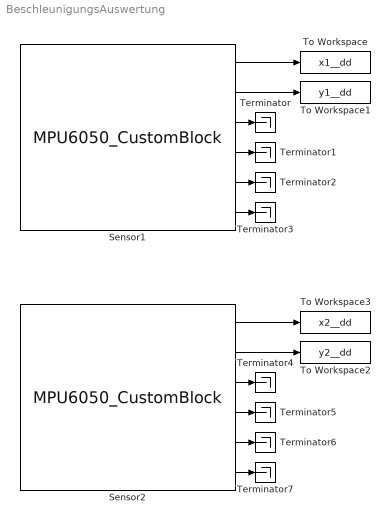
/*
 * Academic License - for use in teaching, academic research, and meeting
 * course requirements at degree granting institutions only.  Not for
 * government, commercial, or other organizational use.
 *
 * File: BeschleunigungsAuswertung.c
 *
 * Code generated for Simulink model 'BeschleunigungsAuswertung'.
 *
 * Model version                  : 1.79
 * Simulink Coder version         : 8.10 (R2016a) 10-Feb-2016
 * C/C++ source code generated on : Mon Aug 08 17:04:04 2016
 *
 * Target selection: ert.tlc
 * Embedded hardware selection: ARM Compatible->ARM Cortex
 * Code generation objectives: Unspecified
 * Validation result: Not run
 */

#include "BeschleunigungsAuswertung.h"
#include "BeschleunigungsAuswertung_private.h"
#include "BeschleunigungsAuswertung_dt.h"

/* Block signals (auto storage) */
B_BeschleunigungsAuswertung_T BeschleunigungsAuswertung_B;

/* Block states (auto storage) */
DW_BeschleunigungsAuswertung_T BeschleunigungsAuswertung_DW;

/* Real-time model */
RT_MODEL_BeschleunigungsAuswe_T BeschleunigungsAuswertung_M_;
RT_MODEL_BeschleunigungsAuswe_T *const BeschleunigungsAuswertung_M =
  &BeschleunigungsAuswertung_M_;

/* Model step function */
void BeschleunigungsAuswertung_step(void)
{
  /* S-Function (MPU6050_CustomBlock): '<Root>/Sensor1' */
  MPU6050_CustomBlock_Outputs_wrapper( &BeschleunigungsAuswertung_B.Sensor1_o1,
    &BeschleunigungsAuswertung_B.Sensor1_o2,
    &BeschleunigungsAuswertung_B.Sensor1_o3,
    &BeschleunigungsAuswertung_B.Sensor1_o4,
    &BeschleunigungsAuswertung_B.Sensor1_o5,
    &BeschleunigungsAuswertung_B.Sensor1_o6,
    &BeschleunigungsAuswertung_DW.Sensor1_DSTATE,
    &BeschleunigungsAuswertung_P.Sensor1_P1, 1,
    &BeschleunigungsAuswertung_P.Sensor1_P2, 1);

  /* S-Function (MPU6050_CustomBlock): '<Root>/Sensor2' */
  MPU6050_CustomBlock_Outputs_wrapper( &BeschleunigungsAuswertung_B.Sensor2_o1,
    &BeschleunigungsAuswertung_B.Sensor2_o2,
    &BeschleunigungsAuswertung_B.Sensor2_o3,
    &BeschleunigungsAuswertung_B.Sensor2_o4,
    &BeschleunigungsAuswertung_B.Sensor2_o5,
    &BeschleunigungsAuswertung_B.Sensor2_o6,
    &BeschleunigungsAuswertung_DW.Sensor2_DSTATE,
    &BeschleunigungsAuswertung_P.Sensor2_P1, 1,
    &BeschleunigungsAuswertung_P.Sensor2_P2, 1);

  /* S-Function "MPU6050_CustomBlock_wrapper" Block: <Root>/Sensor1 */
  MPU6050_CustomBlock_Update_wrapper( &BeschleunigungsAuswertung_B.Sensor1_o1,
    &BeschleunigungsAuswertung_B.Sensor1_o2,
    &BeschleunigungsAuswertung_B.Sensor1_o3,
    &BeschleunigungsAuswertung_B.Sensor1_o4,
    &BeschleunigungsAuswertung_B.Sensor1_o5,
    &BeschleunigungsAuswertung_B.Sensor1_o6,
    &BeschleunigungsAuswertung_DW.Sensor1_DSTATE,
    &BeschleunigungsAuswertung_P.Sensor1_P1, 1,
    &BeschleunigungsAuswertung_P.Sensor1_P2, 1);

  /* S-Function "MPU6050_CustomBlock_wrapper" Block: <Root>/Sensor2 */
  MPU6050_CustomBlock_Update_wrapper( &BeschleunigungsAuswertung_B.Sensor2_o1,
    &BeschleunigungsAuswertung_B.Sensor2_o2,
    &BeschleunigungsAuswertung_B.Sensor2_o3,
    &BeschleunigungsAuswertung_B.Sensor2_o4,
    &BeschleunigungsAuswertung_B.Sensor2_o5,
    &BeschleunigungsAuswertung_B.Sensor2_o6,
    &BeschleunigungsAuswertung_DW.Sensor2_DSTATE,
    &BeschleunigungsAuswertung_P.Sensor2_P1, 1,
    &BeschleunigungsAuswertung_P.Sensor2_P2, 1);

  /* External mode */
  rtExtModeUploadCheckTrigger(1);

  {                                    /* Sample time: [0.01s, 0.0s] */
    rtExtModeUpload(0, BeschleunigungsAuswertung_M->Timing.taskTime0);
  }

  /* signal main to stop simulation */
  {                                    /* Sample time: [0.01s, 0.0s] */
    if ((rtmGetTFinal(BeschleunigungsAuswertung_M)!=-1) &&
        !((rtmGetTFinal(BeschleunigungsAuswertung_M)-
           BeschleunigungsAuswertung_M->Timing.taskTime0) >
          BeschleunigungsAuswertung_M->Timing.taskTime0 * (DBL_EPSILON))) {
      rtmSetErrorStatus(BeschleunigungsAuswertung_M, "Simulation finished");
    }

    if (rtmGetStopRequested(BeschleunigungsAuswertung_M)) {
      rtmSetErrorStatus(BeschleunigungsAuswertung_M, "Simulation finished");
    }
  }

  /* Update absolute time for base rate */
  /* The "clockTick0" counts the number of times the code of this task has
   * been executed. The absolute time is the multiplication of "clockTick0"
   * and "Timing.stepSize0". Size of "clockTick0" ensures timer will not
   * overflow during the application lifespan selected.
   * Timer of this task consists of two 32 bit unsigned integers.
   * The two integers represent the low bits Timing.clockTick0 and the high bits
   * Timing.clockTickH0. When the low bit overflows to 0, the high bits increment.
   */
  if (!(++BeschleunigungsAuswertung_M->Timing.clockTick0)) {
    ++BeschleunigungsAuswertung_M->Timing.clockTickH0;
  }

  BeschleunigungsAuswertung_M->Timing.taskTime0 =
    BeschleunigungsAuswertung_M->Timing.clockTick0 *
    BeschleunigungsAuswertung_M->Timing.stepSize0 +
    BeschleunigungsAuswertung_M->Timing.clockTickH0 *
    BeschleunigungsAuswertung_M->Timing.stepSize0 * 4294967296.0;
}
